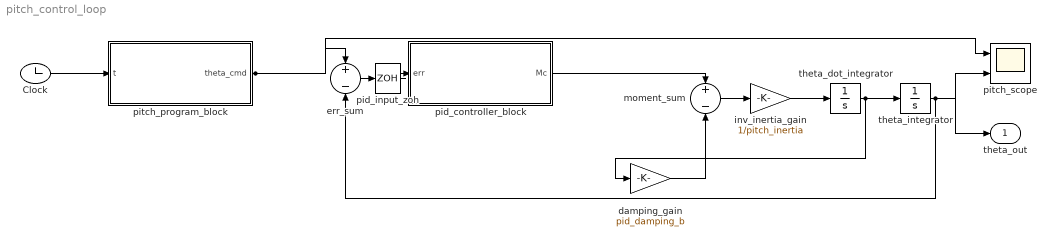
== matlab function pitch_control_loop/pitch_program_block ==
function theta_cmd = pitch_program_block(t)
% Embedded Coder-compatible port of src/guidance/pitch_program.m.
% Constants inlined (MATLAB Function blocks do not accept struct
% inputs from config/*.m directly without extra setup); keep in
% sync with config/simulation_settings.m ss.pitch fields by hand,
% documented in docs/01_design_decisions.md.
t_vertical = 10.0; t_kick_end = 15.0; kick_deg = 3.0;
t_pitch_end = 260.0; theta_final_deg = 6.0;
if t < t_vertical
    theta_cmd_deg = 90.0;
elseif t < t_kick_end
    frac = (t - t_vertical) / (t_kick_end - t_vertical);
    theta_cmd_deg = 90.0 - kick_deg * frac;
else
    theta_kick = 90.0 - kick_deg;
    if t < t_pitch_end
        frac = (t - t_kick_end) / (t_pitch_end - t_kick_end);
        theta_cmd_deg = theta_kick + (theta_final_deg - theta_kick) * frac;
    else
        theta_cmd_deg = theta_final_deg;
    end
end
theta_cmd = theta_cmd_deg * pi / 180;

== matlab function pitch_control_loop/pid_controller_block ==
function Mc = pid_controller_block(err)
% Embedded Coder-compatible port of src/control/pid_update.m,
% using persistent variables for controller state (the idiomatic
% Simulink/Embedded-Coder pattern) instead of the explicit
% struct-in/struct-out signature used in the plain-MATLAB
% version -- structs crossing a MATLAB Function block boundary
% need extra bus/type setup that is not worth the complexity
% here. Gains are inlined; keep in sync with
% config/vehicle_parameters.m vp.pid by hand.
persistent integral prev_err first_call
if isempty(first_call)
    integral = 0.0; prev_err = 0.0; first_call = true;
end
kp = 800000.0; ki = 5000.0; kd = 250000.0; out_limit = 2.0e6;
dt = 0.05;
integral = integral + err * dt;
if first_call
    deriv = 0.0;
else
    deriv = (err - prev_err) / dt;
end
u_unsat = kp*err + ki*integral + kd*deriv;
Mc = max(min(u_unsat, out_limit), -out_limit);
prev_err = err;
first_call = false;

/*
 * Academic License - for use in teaching, academic research, and meeting
 * course requirements at degree granting institutions only.  Not for
 * government, commercial, or other organizational use.
 *
 * File: pitch_control_loop.c
 *
 * Code generated for Simulink model 'pitch_control_loop'.
 *
 * Model version                  : 1.2
 * Simulink Coder version         : 25.1 (R2025a) 21-Nov-2024
 * C/C++ source code generated on : Sat Sep 19 21:23:16 2026
 *
 * Target selection: ert.tlc
 * Embedded hardware selection: Intel->x86-64 (Windows64)
 * Code generation objectives: Unspecified
 * Validation result: Not run
 */

#include "pitch_control_loop.h"
#include <math.h>
#include "rtwtypes.h"
#include "pitch_control_loop_private.h"

/* Block signals (default storage) */
B_pitch_control_loop_T pitch_control_loop_B;

/* Continuous states */
X_pitch_control_loop_T pitch_control_loop_X;

/* Disabled State Vector */
XDis_pitch_control_loop_T pitch_control_loop_XDis;

/* Block states (default storage) */
DW_pitch_control_loop_T pitch_control_loop_DW;

/* External outputs (root outports fed by signals with default storage) */
ExtY_pitch_control_loop_T pitch_control_loop_Y;

/* Real-time model */
static RT_MODEL_pitch_control_loop_T pitch_control_loop_M_;
RT_MODEL_pitch_control_loop_T *const pitch_control_loop_M =
  &pitch_control_loop_M_;

/*
 * This function updates continuous states using the ODE4 fixed-step
 * solver algorithm
 */
static void rt_ertODEUpdateContinuousStates(RTWSolverInfo *si )
{
  time_T t = rtsiGetT(si);
  time_T tnew = rtsiGetSolverStopTime(si);
  time_T h = rtsiGetStepSize(si);
  real_T *x = rtsiGetContStates(si);
  ODE4_IntgData *id = (ODE4_IntgData *)rtsiGetSolverData(si);
  real_T *y = id->y;
  real_T *f0 = id->f[0];
  real_T *f1 = id->f[1];
  real_T *f2 = id->f[2];
  real_T *f3 = id->f[3];
  real_T temp;
  int_T i;
  int_T nXc = 2;
  rtsiSetSimTimeStep(si,MINOR_TIME_STEP);

  /* Save the state values at time t in y, we'll use x as ynew. */
  (void) memcpy(y, x,
                (uint_T)nXc*sizeof(real_T));

  /* Assumes that rtsiSetT and ModelOutputs are up-to-date */
  /* f0 = f(t,y) */
  rtsiSetdX(si, f0);
  pitch_control_loop_derivatives();

  /* f1 = f(t + (h/2), y + (h/2)*f0) */
  temp = 0.5 * h;
  for (i = 0; i < nXc; i++) {
    x[i] = y[i] + (temp*f0[i]);
  }

  rtsiSetT(si, t + temp);
  rtsiSetdX(si, f1);
  pitch_control_loop_step();
  pitch_control_loop_derivatives();

  /* f2 = f(t + (h/2), y + (h/2)*f1) */
  for (i = 0; i < nXc; i++) {
    x[i] = y[i] + (temp*f1[i]);
  }

  rtsiSetdX(si, f2);
  pitch_control_loop_step();
  pitch_control_loop_derivatives();

  /* f3 = f(t + h, y + h*f2) */
  for (i = 0; i < nXc; i++) {
    x[i] = y[i] + (h*f2[i]);
  }

  rtsiSetT(si, tnew);
  rtsiSetdX(si, f3);
  pitch_control_loop_step();
  pitch_control_loop_derivatives();

  /* tnew = t + h
     ynew = y + (h/6)*(f0 + 2*f1 + 2*f2 + 2*f3) */
  temp = h / 6.0;
  for (i = 0; i < nXc; i++) {
    x[i] = y[i] + temp*(f0[i] + 2.0*f1[i] + 2.0*f2[i] + f3[i]);
  }

  rtsiSetSimTimeStep(si,MAJOR_TIME_STEP);
}

/* Model step function */
void pitch_control_loop_step(void)
{
  real_T err_sum;
  real_T rtb_Clock;
  if (rtmIsMajorTimeStep(pitch_control_loop_M)) {
    /* set solver stop time */
    rtsiSetSolverStopTime(&pitch_control_loop_M->solverInfo,
                          ((pitch_control_loop_M->Timing.clockTick0+1)*
      pitch_control_loop_M->Timing.stepSize0));
  }                                    /* end MajorTimeStep */

  /* Update absolute time of base rate at minor time step */
  if (rtmIsMinorTimeStep(pitch_control_loop_M)) {
    pitch_control_loop_M->Timing.t[0] = rtsiGetT
      (&pitch_control_loop_M->solverInfo);
  }

  /* Outport: '<Root>/theta_out' incorporates:
   *  Integrator: '<Root>/theta_integrator'
   */
  pitch_control_loop_Y.theta_out = pitch_control_loop_X.theta_integrator_CSTATE;

  /* Clock: '<Root>/Clock' */
  rtb_Clock = pitch_control_loop_M->Timing.t[0];

  /* MATLAB Function: '<Root>/pitch_program_block' */
  if (rtb_Clock < 10.0) {
    rtb_Clock = 90.0;
  } else if (rtb_Clock < 15.0) {
    rtb_Clock = 90.0 - (rtb_Clock - 10.0) / 5.0 * 3.0;
  } else if (rtb_Clock < 260.0) {
    rtb_Clock = (rtb_Clock - 15.0) / 245.0 * -81.0 + 87.0;
  } else {
    rtb_Clock = 6.0;
  }

  /* Sum: '<Root>/err_sum' incorporates:
   *  Integrator: '<Root>/theta_integrator'
   *  MATLAB Function: '<Root>/pitch_program_block'
   */
  err_sum = rtb_Clock * 3.1415926535897931 / 180.0 -
    pitch_control_loop_X.theta_integrator_CSTATE;
  if (rtmIsMajorTimeStep(pitch_control_loop_M)) {
    /* MATLAB Function: '<Root>/pid_controller_block' incorporates:
     *  ZeroOrderHold: '<Root>/pid_input_zoh'
     */
    pitch_control_loop_DW.integral += err_sum * 0.05;
    if (pitch_control_loop_DW.first_call) {
      rtb_Clock = 0.0;
    } else {
      rtb_Clock = (err_sum - pitch_control_loop_DW.prev_err) / 0.05;
    }

    pitch_control_loop_B.Mc = fmax(fmin((800000.0 * err_sum + 5000.0 *
      pitch_control_loop_DW.integral) + 250000.0 * rtb_Clock, 2.0E+6), -2.0E+6);
    pitch_control_loop_DW.prev_err = err_sum;
    pitch_control_loop_DW.first_call = false;

    /* End of MATLAB Function: '<Root>/pid_controller_block' */
  }

  /* Integrator: '<Root>/theta_dot_integrator' */
  pitch_control_loop_B.theta_dot_integrator =
    pitch_control_loop_X.theta_dot_integrator_CSTATE;

  /* Gain: '<Root>/inv_inertia_gain' incorporates:
   *  Gain: '<Root>/damping_gain'
   *  Sum: '<Root>/moment_sum'
   */
  pitch_control_loop_B.inv_inertia_gain = (pitch_control_loop_B.Mc - 50000.0 *
    pitch_control_loop_B.theta_dot_integrator) * 8.3333333333333337E-6;
  if (rtmIsMajorTimeStep(pitch_control_loop_M)) {
    rt_ertODEUpdateContinuousStates(&pitch_control_loop_M->solverInfo);

    /* Update absolute time for base rate */
    /* The "clockTick0" counts the number of times the code of this task has
     * been executed. The absolute time is the multiplication of "clockTick0"
     * and "Timing.stepSize0". Size of "clockTick0" ensures timer will not
     * overflow during the application lifespan selected.
     */
    ++pitch_control_loop_M->Timing.clockTick0;
    pitch_control_loop_M->Timing.t[0] = rtsiGetSolverStopTime
      (&pitch_control_loop_M->solverInfo);

    {
      /* Update absolute timer for sample time: [0.05s, 0.0s] */
      /* The "clockTick1" counts the number of times the code of this task has
       * been executed. The resolution of this integer timer is 0.05, which is the step size
       * of the task. Size of "clockTick1" ensures timer will not overflow during the
       * application lifespan selected.
       */
      pitch_control_loop_M->Timing.clockTick1++;
    }
  }                                    /* end MajorTimeStep */
}
